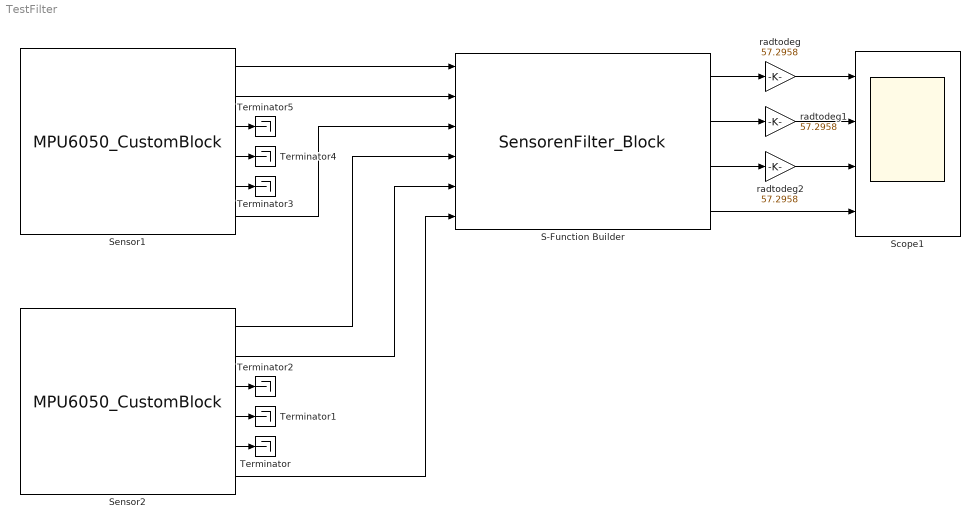
/*
 * Academic License - for use in teaching, academic research, and meeting
 * course requirements at degree granting institutions only.  Not for
 * government, commercial, or other organizational use.
 *
 * File: TestFilter.c
 *
 * Code generated for Simulink model 'TestFilter'.
 *
 * Model version                  : 1.23
 * Simulink Coder version         : 8.10 (R2016a) 10-Feb-2016
 * C/C++ source code generated on : Sat Aug 27 13:43:35 2016
 *
 * Target selection: ert.tlc
 * Embedded hardware selection: ARM Compatible->ARM Cortex
 * Code generation objectives: Unspecified
 * Validation result: Not run
 */

#include "TestFilter.h"
#include "TestFilter_private.h"
#include "TestFilter_dt.h"

/* Block signals (auto storage) */
B_TestFilter_T TestFilter_B;

/* Block states (auto storage) */
DW_TestFilter_T TestFilter_DW;

/* Real-time model */
RT_MODEL_TestFilter_T TestFilter_M_;
RT_MODEL_TestFilter_T *const TestFilter_M = &TestFilter_M_;

/* Model step function */
void TestFilter_step(void)
{
  /* S-Function (MPU6050_CustomBlock): '<Root>/Sensor1' */
  MPU6050_CustomBlock_Outputs_wrapper( &TestFilter_B.Sensor1_o1,
    &TestFilter_B.Sensor1_o2, &TestFilter_B.Sensor1_o3, &TestFilter_B.Sensor1_o4,
    &TestFilter_B.Sensor1_o5, &TestFilter_B.Sensor1_o6,
    &TestFilter_DW.Sensor1_DSTATE, &TestFilter_P.Sensor1_P1, 1,
    &TestFilter_P.Sensor1_P2, 1);

  /* S-Function (MPU6050_CustomBlock): '<Root>/Sensor2' */
  MPU6050_CustomBlock_Outputs_wrapper( &TestFilter_B.Sensor2_o1,
    &TestFilter_B.Sensor2_o2, &TestFilter_B.Sensor2_o3, &TestFilter_B.Sensor2_o4,
    &TestFilter_B.Sensor2_o5, &TestFilter_B.Sensor2_o6,
    &TestFilter_DW.Sensor2_DSTATE, &TestFilter_P.Sensor2_P1, 1,
    &TestFilter_P.Sensor2_P2, 1);

  /* S-Function (SensorenFilter_Block): '<Root>/S-Function Builder' */
  SensorenFilter_Block_Outputs_wrapper(&TestFilter_B.Sensor1_o1,
    &TestFilter_B.Sensor1_o6, &TestFilter_B.Sensor2_o6, &TestFilter_B.Sensor1_o2,
    &TestFilter_B.Sensor2_o2, &TestFilter_B.Sensor2_o1,
    &TestFilter_B.SFunctionBuilder_o1, &TestFilter_B.SFunctionBuilder_o2,
    &TestFilter_B.SFunctionBuilder_o3, &TestFilter_B.SFunctionBuilder_o4,
    &TestFilter_DW.SFunctionBuilder_DSTATE, &TestFilter_P.SFunctionBuilder_P1, 1);

  /* Gain: '<Root>/radtodeg' */
  TestFilter_B.radtodeg = TestFilter_P.radtodeg_Gain *
    TestFilter_B.SFunctionBuilder_o1;

  /* Gain: '<Root>/radtodeg1' */
  TestFilter_B.radtodeg1 = TestFilter_P.radtodeg1_Gain *
    TestFilter_B.SFunctionBuilder_o2;

  /* Gain: '<Root>/radtodeg2' */
  TestFilter_B.radtodeg2 = TestFilter_P.radtodeg2_Gain *
    TestFilter_B.SFunctionBuilder_o3;

  /* S-Function "MPU6050_CustomBlock_wrapper" Block: <Root>/Sensor1 */
  MPU6050_CustomBlock_Update_wrapper( &TestFilter_B.Sensor1_o1,
    &TestFilter_B.Sensor1_o2, &TestFilter_B.Sensor1_o3, &TestFilter_B.Sensor1_o4,
    &TestFilter_B.Sensor1_o5, &TestFilter_B.Sensor1_o6,
    &TestFilter_DW.Sensor1_DSTATE, &TestFilter_P.Sensor1_P1, 1,
    &TestFilter_P.Sensor1_P2, 1);

  /* S-Function "MPU6050_CustomBlock_wrapper" Block: <Root>/Sensor2 */
  MPU6050_CustomBlock_Update_wrapper( &TestFilter_B.Sensor2_o1,
    &TestFilter_B.Sensor2_o2, &TestFilter_B.Sensor2_o3, &TestFilter_B.Sensor2_o4,
    &TestFilter_B.Sensor2_o5, &TestFilter_B.Sensor2_o6,
    &TestFilter_DW.Sensor2_DSTATE, &TestFilter_P.Sensor2_P1, 1,
    &TestFilter_P.Sensor2_P2, 1);

  /* S-Function "SensorenFilter_Block_wrapper" Block: <Root>/S-Function Builder */
  SensorenFilter_Block_Update_wrapper(&TestFilter_B.Sensor1_o1,
    &TestFilter_B.Sensor1_o6, &TestFilter_B.Sensor2_o6, &TestFilter_B.Sensor1_o2,
    &TestFilter_B.Sensor2_o2, &TestFilter_B.Sensor2_o1,
    &TestFilter_B.SFunctionBuilder_o1, &TestFilter_B.SFunctionBuilder_o2,
    &TestFilter_B.SFunctionBuilder_o3, &TestFilter_B.SFunctionBuilder_o4,
    &TestFilter_DW.SFunctionBuilder_DSTATE, &TestFilter_P.SFunctionBuilder_P1, 1);

  /* External mode */
  rtExtModeUploadCheckTrigger(1);

  {                                    /* Sample time: [0.02s, 0.0s] */
    rtExtModeUpload(0, TestFilter_M->Timing.taskTime0);
  }

  /* signal main to stop simulation */
  {                                    /* Sample time: [0.02s, 0.0s] */
    if ((rtmGetTFinal(TestFilter_M)!=-1) &&
        !((rtmGetTFinal(TestFilter_M)-TestFilter_M->Timing.taskTime0) >
          TestFilter_M->Timing.taskTime0 * (DBL_EPSILON))) {
      rtmSetErrorStatus(TestFilter_M, "Simulation finished");
    }

    if (rtmGetStopRequested(TestFilter_M)) {
      rtmSetErrorStatus(TestFilter_M, "Simulation finished");
    }
  }

  /* Update absolute time for base rate */
  /* The "clockTick0" counts the number of times the code of this task has
   * been executed. The absolute time is the multiplication of "clockTick0"
   * and "Timing.stepSize0". Size of "clockTick0" ensures timer will not
   * overflow during the application lifespan selected.
   */
  TestFilter_M->Timing.taskTime0 =
    (++TestFilter_M->Timing.clockTick0) * TestFilter_M->Timing.stepSize0;
}
